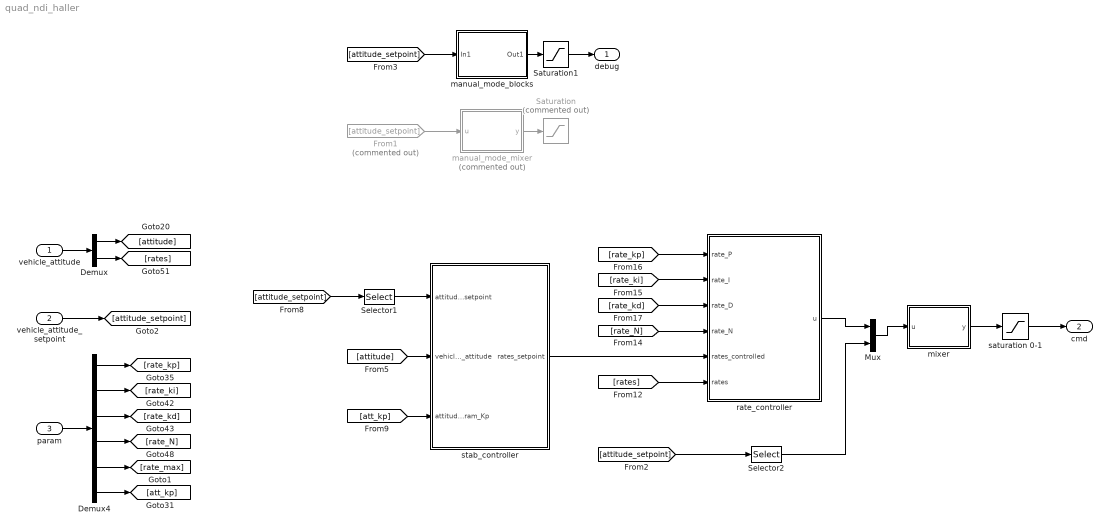
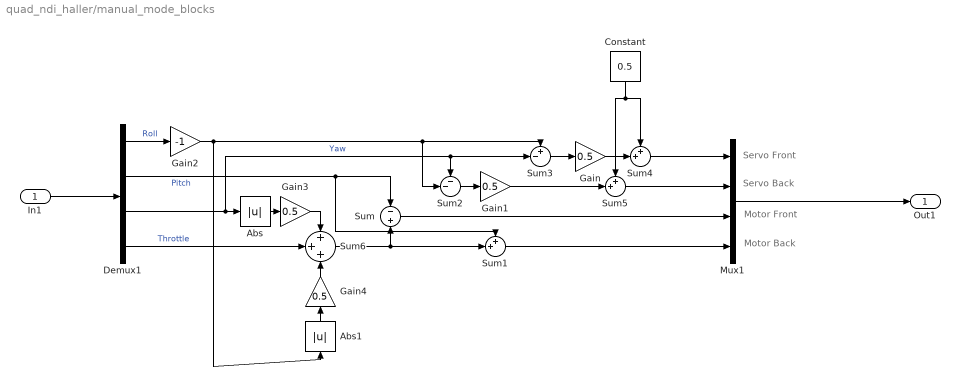
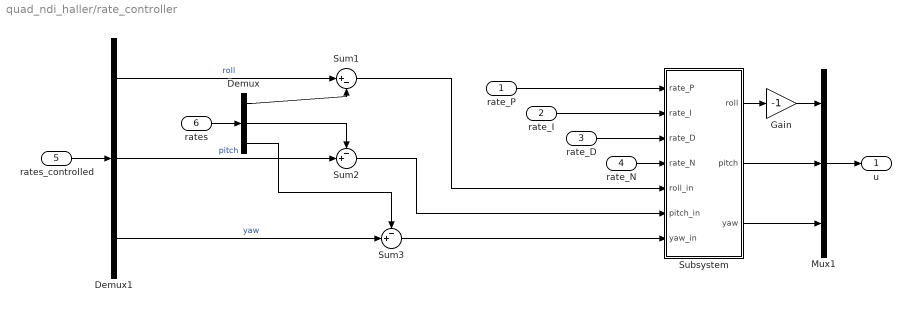
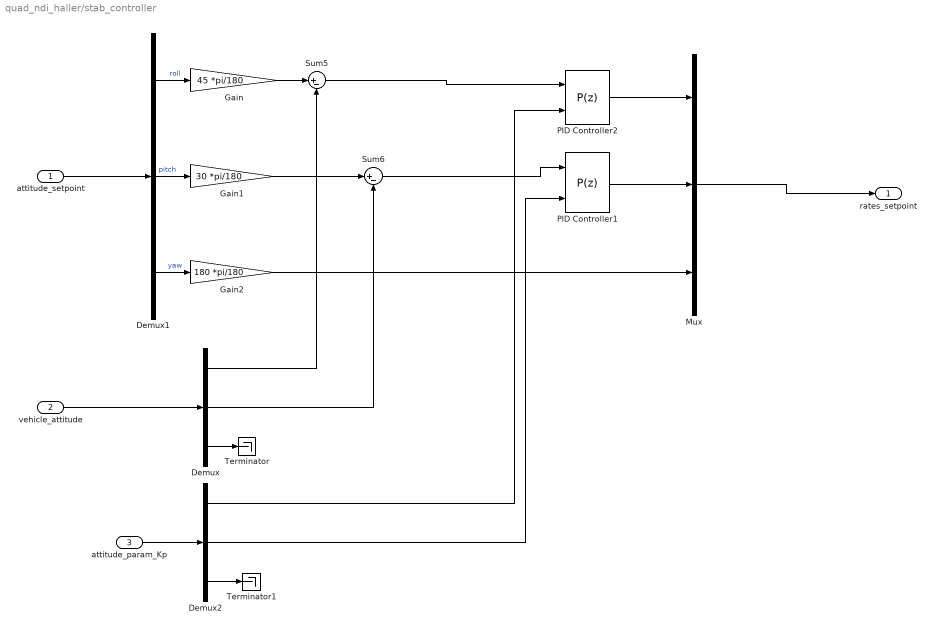
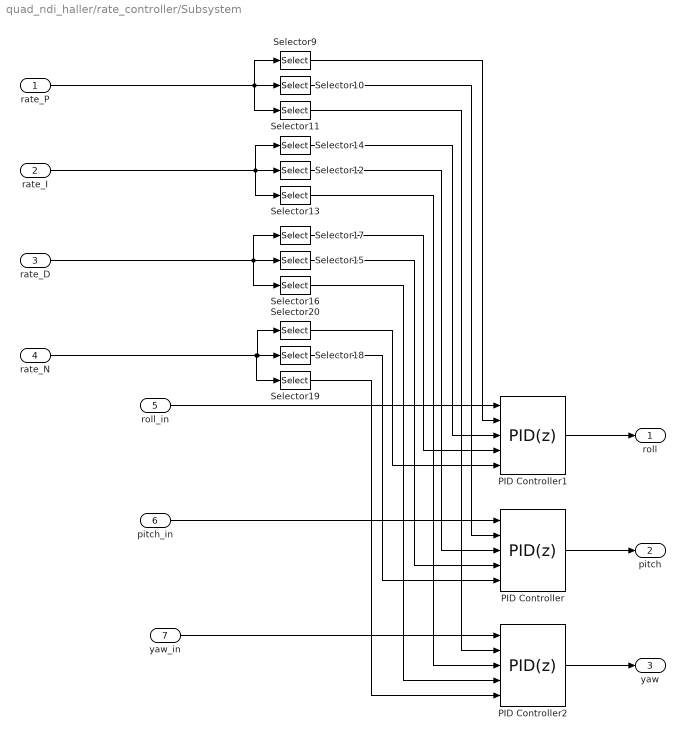
== matlab function quad_ndi_haller/manual_mode_mixer ==
function y = fcn(u)

% Mixing Matrix
%     R  P  Y  T
M =  [-1  0 -1  0;  % s1
       1  0 -1  0;  % s2
       0  1  0  1;  % u1
       0 -1  0  1]; % u2

y = (M * u);

y(1) = 0.5 + 0.5 * y(1);
y(2) = 0.5 + 0.5 * y(2);
y;

== matlab function quad_ndi_haller/mixer ==
function y = fcn(u)

% Mixing Matrix
%      R  P  Y  T
M =  [-1  0 -1  0;  % s1
       1  0 -1  0;  % s2
       0 -1  0  1;  % u1
       0  1  0  1]; % u2

% Mixing Matrix mit Steuergrößen multiplizieren   
y = M * u;

% Servo Offset, da Servocommand 0 = 90° entspricht
y(1) = 0.5 + 0.5 * y(1);
y(2) = 0.5 + 0.5 * y(2);

y;

//
// Academic License - for use in teaching, academic research, and meeting
// course requirements at degree granting institutions only.  Not for
// government, commercial, or other organizational use.
//
// File: quad_ndi_haller.cpp
//
// Code generated for Simulink model 'quad_ndi_haller'.
//
// Model version                  : 1.656
// Simulink Coder version         : 8.13 (R2017b) 24-Jul-2017
// C/C++ source code generated on : Tue Apr 10 13:21:33 2018
//
// Target selection: ert.tlc
// Embedded hardware selection: ARM Compatible->ARM Cortex
// Code generation objectives:
//    1. Execution efficiency
//    2. RAM efficiency
// Validation result: Not run
//
#include "quad_ndi_haller.h"

// Model step function
void quad_ndi_class::step(const real32_T arg_vehicle_attitude[6], const real32_T
  arg_vehicle_attitude_setpoint[4], const real32_T arg_param[18], real32_T
  arg_cmd[4], real32_T arg_debug[4])
{
  static const int8_T b[16] = { -1, 1, 0, 0, 0, 0, -1, 1, -1, -1, 0, 0, 0, 0, 1,
    1 };

  real32_T rtb_Sum2_n;
  real32_T rtb_Sum3;
  real32_T rtb_Sum2;
  real32_T rtb_Sum1;
  real32_T rtb_Sum3_f;
  real32_T rtb_NOut_e;
  real32_T rtb_y[4];
  int32_T i;
  real32_T tmp;
  real32_T tmp_0;
  real32_T tmp_1;
  real32_T rtb_y_d;

  // Sum: '<S1>/Sum6' incorporates:
  //   Abs: '<S1>/Abs'
  //   Abs: '<S1>/Abs1'
  //   Gain: '<S1>/Gain2'
  //   Gain: '<S1>/Gain3'
  //   Gain: '<S1>/Gain4'
  //   Inport: '<Root>/vehicle_attitude_setpoint'

  rtb_Sum1 = (0.5F * (real32_T)fabs((real_T)arg_vehicle_attitude_setpoint[2]) +
              arg_vehicle_attitude_setpoint[3]) + 0.5F * (real32_T)fabs((real_T)
    -arg_vehicle_attitude_setpoint[0]);

  // Sum: '<S1>/Sum' incorporates:
  //   Inport: '<Root>/vehicle_attitude_setpoint'

  rtb_Sum2_n = rtb_Sum1 - arg_vehicle_attitude_setpoint[1];

  // Sum: '<S1>/Sum1' incorporates:
  //   Inport: '<Root>/vehicle_attitude_setpoint'

  rtb_Sum1 += arg_vehicle_attitude_setpoint[1];

  // Sum: '<S1>/Sum4' incorporates:
  //   Constant: '<S1>/Constant'
  //   Gain: '<S1>/Gain'
  //   Gain: '<S1>/Gain2'
  //   Inport: '<Root>/vehicle_attitude_setpoint'
  //   Sum: '<S1>/Sum3'

  rtb_Sum3 = (-arg_vehicle_attitude_setpoint[0] - arg_vehicle_attitude_setpoint
              [2]) * 0.5F + 0.5F;

  // Saturate: '<Root>/Saturation1'
  if (rtb_Sum3 > 1.0F) {
    // Outport: '<Root>/debug'
    arg_debug[0] = 1.0F;
  } else if (rtb_Sum3 < 0.0F) {
    // Outport: '<Root>/debug'
    arg_debug[0] = 0.0F;
  } else {
    // Outport: '<Root>/debug'
    arg_debug[0] = rtb_Sum3;
  }

  // Sum: '<S1>/Sum5' incorporates:
  //   Constant: '<S1>/Constant'
  //   Gain: '<S1>/Gain1'
  //   Gain: '<S1>/Gain2'
  //   Inport: '<Root>/vehicle_attitude_setpoint'
  //   Sum: '<S1>/Sum2'

  rtb_Sum3 = ((0.0F - arg_vehicle_attitude_setpoint[2]) -
              (-arg_vehicle_attitude_setpoint[0])) * 0.5F + 0.5F;

  // Saturate: '<Root>/Saturation1'
  if (rtb_Sum3 > 1.0F) {
    // Outport: '<Root>/debug'
    arg_debug[1] = 1.0F;
  } else if (rtb_Sum3 < 0.0F) {
    // Outport: '<Root>/debug'
    arg_debug[1] = 0.0F;
  } else {
    // Outport: '<Root>/debug'
    arg_debug[1] = rtb_Sum3;
  }

  if (rtb_Sum2_n > 1.0F) {
    // Outport: '<Root>/debug'
    arg_debug[2] = 1.0F;
  } else if (rtb_Sum2_n < 0.0F) {
    // Outport: '<Root>/debug'
    arg_debug[2] = 0.0F;
  } else {
    // Outport: '<Root>/debug'
    arg_debug[2] = rtb_Sum2_n;
  }

  if (rtb_Sum1 > 1.0F) {
    // Outport: '<Root>/debug'
    arg_debug[3] = 1.0F;
  } else if (rtb_Sum1 < 0.0F) {
    // Outport: '<Root>/debug'
    arg_debug[3] = 0.0F;
  } else {
    // Outport: '<Root>/debug'
    arg_debug[3] = rtb_Sum1;
  }

  // Outputs for Atomic SubSystem: '<Root>/stab_controller'
  // Sum: '<S4>/Sum1' incorporates:
  //   Gain: '<S5>/Gain'
  //   Inport: '<Root>/param'
  //   Inport: '<Root>/vehicle_attitude'
  //   Inport: '<Root>/vehicle_attitude_setpoint'
  //   Product: '<S11>/POut'
  //   Sum: '<S5>/Sum5'

  rtb_Sum1 = (0.785398185F * arg_vehicle_attitude_setpoint[0] -
              arg_vehicle_attitude[0]) * arg_param[15] - arg_vehicle_attitude[3];

  // End of Outputs for SubSystem: '<Root>/stab_controller'

  // Product: '<S8>/NOut' incorporates:
  //   DiscreteIntegrator: '<S8>/Filter'
  //   Inport: '<Root>/param'
  //   Product: '<S8>/DOut'
  //   Sum: '<S8>/SumD'

  rtb_Sum3 = (rtb_Sum1 * arg_param[6] - rtDW.Filter_DSTATE) * arg_param[9];

  // Outputs for Atomic SubSystem: '<Root>/stab_controller'
  // Sum: '<S4>/Sum2' incorporates:
  //   Gain: '<S5>/Gain1'
  //   Inport: '<Root>/param'
  //   Inport: '<Root>/vehicle_attitude'
  //   Inport: '<Root>/vehicle_attitude_setpoint'
  //   Product: '<S10>/POut'
  //   Sum: '<S5>/Sum6'

  rtb_Sum2_n = (0.52359879F * arg_vehicle_attitude_setpoint[1] -
                arg_vehicle_attitude[1]) * arg_param[16] - arg_vehicle_attitude
    [4];

  // End of Outputs for SubSystem: '<Root>/stab_controller'

  // Product: '<S7>/NOut' incorporates:
  //   DiscreteIntegrator: '<S7>/Filter'
  //   Inport: '<Root>/param'
  //   Product: '<S7>/DOut'
  //   Sum: '<S7>/SumD'

  rtb_Sum2 = (rtb_Sum2_n * arg_param[7] - rtDW.Filter_DSTATE_n) * arg_param[10];

  // Outputs for Atomic SubSystem: '<Root>/stab_controller'
  // Sum: '<S4>/Sum3' incorporates:
  //   Gain: '<S5>/Gain2'
  //   Inport: '<Root>/vehicle_attitude'
  //   Inport: '<Root>/vehicle_attitude_setpoint'

  rtb_Sum3_f = 3.14159274F * arg_vehicle_attitude_setpoint[2] -
    arg_vehicle_attitude[5];

  // End of Outputs for SubSystem: '<Root>/stab_controller'

  // Product: '<S9>/NOut' incorporates:
  //   DiscreteIntegrator: '<S9>/Filter'
  //   Inport: '<Root>/param'
  //   Product: '<S9>/DOut'
  //   Sum: '<S9>/SumD'

  rtb_NOut_e = (rtb_Sum3_f * arg_param[8] - rtDW.Filter_DSTATE_a) * arg_param[11];

  // SignalConversion: '<S3>/TmpSignal ConversionAt SFunction Inport1' incorporates:
  //   DiscreteIntegrator: '<S7>/Integrator'
  //   DiscreteIntegrator: '<S8>/Integrator'
  //   DiscreteIntegrator: '<S9>/Integrator'
  //   Gain: '<S4>/Gain'
  //   Inport: '<Root>/param'
  //   MATLAB Function: '<Root>/mixer'
  //   Product: '<S7>/POut'
  //   Product: '<S8>/POut'
  //   Product: '<S9>/POut'
  //   Sum: '<S7>/Sum'
  //   Sum: '<S8>/Sum'
  //   Sum: '<S9>/Sum'

  // MATLAB Function 'mixer': '<S3>:1'
  // '<S3>:1:11'
  tmp = -((rtb_Sum1 * arg_param[0] + rtDW.Integrator_DSTATE) + rtb_Sum3);
  tmp_0 = (rtb_Sum2_n * arg_param[1] + rtDW.Integrator_DSTATE_m) + rtb_Sum2;
  tmp_1 = (rtb_Sum3_f * arg_param[2] + rtDW.Integrator_DSTATE_d) + rtb_NOut_e;

  // MATLAB Function: '<Root>/mixer' incorporates:
  //   Inport: '<Root>/vehicle_attitude_setpoint'
  //   SignalConversion: '<S3>/TmpSignal ConversionAt SFunction Inport1'

  for (i = 0; i < 4; i++) {
    rtb_y_d = (real32_T)b[i + 12] * arg_vehicle_attitude_setpoint[3] +
      ((real32_T)b[i + 8] * tmp_1 + ((real32_T)b[i + 4] * tmp_0 + (real32_T)b[i]
        * tmp));
    rtb_y[i] = rtb_y_d;
  }

  // '<S3>:1:14'
  rtb_y[0] = 0.5F * rtb_y[0] + 0.5F;

  // '<S3>:1:15'
  rtb_y[1] = 0.5F * rtb_y[1] + 0.5F;

  // Saturate: '<Root>/saturation 0-1'
  if (rtb_y[0] > 1.0F) {
    // Outport: '<Root>/cmd'
    arg_cmd[0] = 1.0F;
  } else if (rtb_y[0] < 0.0F) {
    // Outport: '<Root>/cmd'
    arg_cmd[0] = 0.0F;
  } else {
    // Outport: '<Root>/cmd'
    arg_cmd[0] = rtb_y[0];
  }

  if (rtb_y[1] > 1.0F) {
    // Outport: '<Root>/cmd'
    arg_cmd[1] = 1.0F;
  } else if (rtb_y[1] < 0.0F) {
    // Outport: '<Root>/cmd'
    arg_cmd[1] = 0.0F;
  } else {
    // Outport: '<Root>/cmd'
    arg_cmd[1] = rtb_y[1];
  }

  if (rtb_y[2] > 1.0F) {
    // Outport: '<Root>/cmd'
    arg_cmd[2] = 1.0F;
  } else if (rtb_y[2] < 0.0F) {
    // Outport: '<Root>/cmd'
    arg_cmd[2] = 0.0F;
  } else {
    // Outport: '<Root>/cmd'
    arg_cmd[2] = rtb_y[2];
  }

  if (rtb_y[3] > 1.0F) {
    // Outport: '<Root>/cmd'
    arg_cmd[3] = 1.0F;
  } else if (rtb_y[3] < 0.0F) {
    // Outport: '<Root>/cmd'
    arg_cmd[3] = 0.0F;
  } else {
    // Outport: '<Root>/cmd'
    arg_cmd[3] = rtb_y[3];
  }

  // End of Saturate: '<Root>/saturation 0-1'

  // Update for DiscreteIntegrator: '<S8>/Integrator' incorporates:
  //   Inport: '<Root>/param'
  //   Product: '<S8>/IOut'

  rtDW.Integrator_DSTATE += rtb_Sum1 * arg_param[3] * 0.004F;

  // Update for DiscreteIntegrator: '<S8>/Filter'
  rtDW.Filter_DSTATE += 0.004F * rtb_Sum3;

  // Update for DiscreteIntegrator: '<S7>/Integrator' incorporates:
  //   Inport: '<Root>/param'
  //   Product: '<S7>/IOut'

  rtDW.Integrator_DSTATE_m += rtb_Sum2_n * arg_param[4] * 0.004F;

  // Update for DiscreteIntegrator: '<S7>/Filter'
  rtDW.Filter_DSTATE_n += 0.004F * rtb_Sum2;

  // Update for DiscreteIntegrator: '<S9>/Integrator' incorporates:
  //   Inport: '<Root>/param'
  //   Product: '<S9>/IOut'

  rtDW.Integrator_DSTATE_d += rtb_Sum3_f * arg_param[5] * 0.004F;

  // Update for DiscreteIntegrator: '<S9>/Filter'
  rtDW.Filter_DSTATE_a += 0.004F * rtb_NOut_e;
}
